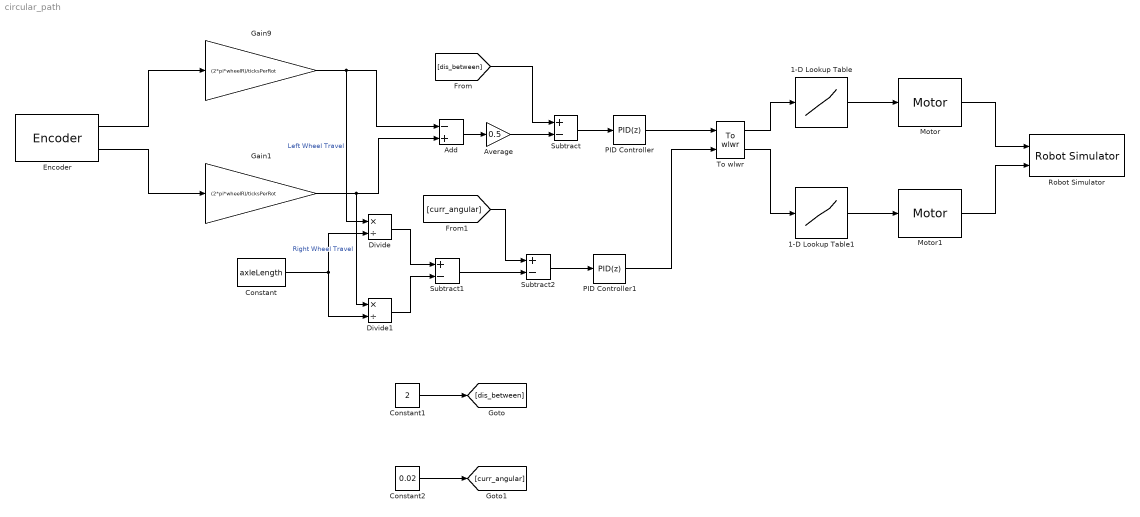
/*
 * circular_path.c
 *
 * Academic License - for use in teaching, academic research, and meeting
 * course requirements at degree granting institutions only.  Not for
 * government, commercial, or other organizational use.
 *
 * Code generation for model "circular_path".
 *
 * Model version              : 1.2
 * Simulink Coder version : 9.6 (R2021b) 14-May-2021
 * C source code generated on : Fri Dec  3 10:37:35 2021
 *
 * Target selection: grt.tlc
 * Note: GRT includes extra infrastructure and instrumentation for prototyping
 * Embedded hardware selection: Intel->x86-64 (Windows64)
 * Code generation objectives: Unspecified
 * Validation result: Not run
 */

#include "circular_path.h"
#include "circular_path_private.h"

/* Block states (default storage) */
DW_circular_path_T circular_path_DW;

/* Real-time model */
static RT_MODEL_circular_path_T circular_path_M_;
RT_MODEL_circular_path_T *const circular_path_M = &circular_path_M_;
real_T look1_binlcpw(real_T u0, const real_T bp0[], const real_T table[],
                     uint32_T maxIndex)
{
  real_T frac;
  real_T yL_0d0;
  uint32_T iLeft;

  /* Column-major Lookup 1-D
     Search method: 'binary'
     Use previous index: 'off'
     Interpolation method: 'Linear point-slope'
     Extrapolation method: 'Clip'
     Use last breakpoint for index at or above upper limit: 'off'
     Remove protection against out-of-range input in generated code: 'off'
   */
  /* Prelookup - Index and Fraction
     Index Search method: 'binary'
     Extrapolation method: 'Clip'
     Use previous index: 'off'
     Use last breakpoint for index at or above upper limit: 'off'
     Remove protection against out-of-range input in generated code: 'off'
   */
  if (u0 <= bp0[0U]) {
    iLeft = 0U;
    frac = 0.0;
  } else if (u0 < bp0[maxIndex]) {
    uint32_T bpIdx;
    uint32_T iRght;

    /* Binary Search */
    bpIdx = maxIndex >> 1U;
    iLeft = 0U;
    iRght = maxIndex;
    while (iRght - iLeft > 1U) {
      if (u0 < bp0[bpIdx]) {
        iRght = bpIdx;
      } else {
        iLeft = bpIdx;
      }

      bpIdx = (iRght + iLeft) >> 1U;
    }

    frac = (u0 - bp0[iLeft]) / (bp0[iLeft + 1U] - bp0[iLeft]);
  } else {
    iLeft = maxIndex - 1U;
    frac = 1.0;
  }

  /* Column-major Interpolation 1-D
     Interpolation method: 'Linear point-slope'
     Use last breakpoint for index at or above upper limit: 'off'
     Overflow mode: 'portable wrapping'
   */
  yL_0d0 = table[iLeft];
  return (table[iLeft + 1U] - yL_0d0) * frac + yL_0d0;
}

/* Model step function */
void circular_path_step(void)
{
  /* local block i/o variables */
  real_T rtb_Internal;
  real_T rtb_Internal_g;
  real_T rtb_Product1;
  real_T rtb_Product2;
  real_T rtb_Product3;
  real_T rtb_FilterCoefficient;
  real_T rtb_Tsamp;
  real_T rtb_uDLookupTable;
  real_T rtb_uDLookupTable1;
  real_T rtb_Gain2;
  real_T rtb_Gain3;
  real_T rtb_Switch;
  real_T rtb_IntegralGain;
  real_T rtb_DiscreteTimeIntegrator_a;
  real_T rtb_IntegralGain_g;
  real_T rtb_Subtract2;
  real_T rtb_Sum;
  real_T rtb_Switch_a4;
  real_T rtb_Switch_p;
  real_T tmp;
  real_T tmp_0;

  /* DiscreteStateSpace: '<S8>/Internal' */
  {
    rtb_Internal = (circular_path_P.Internal_C[0])*
      circular_path_DW.Internal_DSTATE[0]
      + (circular_path_P.Internal_C[1])*circular_path_DW.Internal_DSTATE[1]
      + (circular_path_P.Internal_C[2])*circular_path_DW.Internal_DSTATE[2];
  }

  /* Switch: '<S2>/Switch' incorporates:
   *  Constant: '<S2>/Constant'
   *  DiscreteIntegrator: '<S2>/Discrete-Time Integrator'
   *  Gain: '<S9>/Gain'
   */
  if (circular_path_P.Motor_sensorType > circular_path_P.Switch_Threshold) {
    rtb_Switch_a4 = circular_path_P.Gain_Gain *
      circular_path_DW.DiscreteTimeIntegrator_DSTATE_p;
  } else {
    rtb_Switch_a4 = rtb_Internal;
  }

  /* End of Switch: '<S2>/Switch' */

  /* DiscreteStateSpace: '<S12>/Internal' */
  {
    rtb_Internal_g = (circular_path_P.Internal_C_f[0])*
      circular_path_DW.Internal_DSTATE_l[0]
      + (circular_path_P.Internal_C_f[1])*circular_path_DW.Internal_DSTATE_l[1]
      + (circular_path_P.Internal_C_f[2])*circular_path_DW.Internal_DSTATE_l[2];
  }

  /* Switch: '<S3>/Switch' incorporates:
   *  Constant: '<S3>/Constant'
   *  DiscreteIntegrator: '<S3>/Discrete-Time Integrator'
   *  Gain: '<S13>/Gain'
   */
  if (circular_path_P.Motor1_sensorType > circular_path_P.Switch_Threshold_k) {
    rtb_Switch_p = circular_path_P.Gain_Gain_p *
      circular_path_DW.DiscreteTimeIntegrator_DSTATE_n;
  } else {
    rtb_Switch_p = rtb_Internal_g;
  }

  /* End of Switch: '<S3>/Switch' */

  /* Product: '<S6>/Product' incorporates:
   *  Constant: '<S6>/Wheel Radius'
   *  Gain: '<S6>/Gain1'
   *  Sum: '<S6>/Common Mode'
   */
  rtb_DiscreteTimeIntegrator_a = (rtb_Switch_a4 + rtb_Switch_p) *
    (circular_path_P.Gain1_Gain * circular_path_P.RobotSimulator_wheelR);

  /* Product: '<S6>/Product1' incorporates:
   *  Constant: '<S6>/Wheel Radius'
   *  Constant: '<S6>/Wheel Spacing'
   *  Product: '<S6>/Divide'
   *  Sum: '<S6>/Differential'
   */
  rtb_Product1 = circular_path_P.RobotSimulator_wheelR /
    circular_path_P.RobotSimulator_axleLength * (rtb_Switch_p - rtb_Switch_a4);

  /* Product: '<S6>/Product2' incorporates:
   *  DiscreteIntegrator: '<S6>/Discrete-Time Integrator2'
   *  Trigonometry: '<S6>/Comp_x'
   */
  rtb_Product2 = rtb_DiscreteTimeIntegrator_a * cos
    (circular_path_DW.DiscreteTimeIntegrator2_DSTATE);

  /* Product: '<S6>/Product3' incorporates:
   *  DiscreteIntegrator: '<S6>/Discrete-Time Integrator2'
   *  Trigonometry: '<S6>/Comp_y'
   */
  rtb_Product3 = rtb_DiscreteTimeIntegrator_a * sin
    (circular_path_DW.DiscreteTimeIntegrator2_DSTATE);

  /* S-Function (sfun_time): '<S6>/Soft Real Time' */

  /* Level2 S-Function Block: '<S6>/Soft Real Time' (sfun_time) */
  {
    SimStruct *rts = circular_path_M->childSfunctions[0];
    sfcnOutputs(rts,0);
  }

  /* Gain: '<Root>/Gain9' incorporates:
   *  DiscreteIntegrator: '<S1>/Discrete-Time Integrator'
   *  Gain: '<Root>/Gain1'
   *  Gain: '<S1>/Gain5'
   *  Rounding: '<S1>/Rounding Function'
   */
  rtb_IntegralGain_g = 6.2831853071795862 * circular_path_P.wheelR /
    circular_path_P.ticksPerRot;
  rtb_DiscreteTimeIntegrator_a = ceil(circular_path_P.ticksPerRot / 360.0 *
    circular_path_DW.DiscreteTimeIntegrator_DSTATE_k) * rtb_IntegralGain_g;

  /* Gain: '<Root>/Gain1' incorporates:
   *  DiscreteIntegrator: '<S1>/Discrete-Time Integrator1'
   *  Gain: '<S1>/Gain6'
   *  Rounding: '<S1>/Rounding Function1'
   */
  rtb_IntegralGain_g *= ceil(circular_path_P.ticksPerRot / 360.0 *
    circular_path_DW.DiscreteTimeIntegrator1_DSTAT_n);

  /* Sum: '<Root>/Subtract2' incorporates:
   *  Constant: '<Root>/Constant'
   *  Constant: '<Root>/Constant2'
   *  Product: '<Root>/Divide'
   *  Product: '<Root>/Divide1'
   *  Sum: '<Root>/Subtract1'
   */
  rtb_Subtract2 = circular_path_P.Constant2_Value -
    (rtb_DiscreteTimeIntegrator_a / circular_path_P.axleLength -
     rtb_IntegralGain_g / circular_path_P.axleLength);

  /* Gain: '<S102>/Filter Coefficient' incorporates:
   *  DiscreteIntegrator: '<S94>/Filter'
   *  Gain: '<S93>/Derivative Gain'
   *  Sum: '<S94>/SumD'
   */
  rtb_FilterCoefficient = (circular_path_P.PIDController1_D * rtb_Subtract2 -
    circular_path_DW.Filter_DSTATE) * circular_path_P.PIDController1_N;

  /* Sum: '<S108>/Sum' incorporates:
   *  DiscreteIntegrator: '<S99>/Integrator'
   *  Gain: '<S104>/Proportional Gain'
   */
  rtb_Sum = (circular_path_P.PIDController1_P * rtb_Subtract2 +
             circular_path_DW.Integrator_DSTATE) + rtb_FilterCoefficient;

  /* Sum: '<Root>/Subtract' incorporates:
   *  Constant: '<Root>/Constant1'
   *  Gain: '<Root>/Average'
   *  Sum: '<Root>/Add'
   */
  rtb_IntegralGain_g = circular_path_P.Constant1_Value_g - (rtb_IntegralGain_g -
    rtb_DiscreteTimeIntegrator_a) * circular_path_P.Average_Gain;

  /* SampleTimeMath: '<S46>/Tsamp' incorporates:
   *  Gain: '<S43>/Derivative Gain'
   *
   * About '<S46>/Tsamp':
   *  y = u * K where K = 1 / ( w * Ts )
   */
  rtb_Tsamp = circular_path_P.PIDController_D * rtb_IntegralGain_g *
    circular_path_P.Tsamp_WtEt;

  /* Sum: '<S60>/Sum' incorporates:
   *  Delay: '<S44>/UD'
   *  DiscreteIntegrator: '<S51>/Integrator'
   *  Gain: '<S56>/Proportional Gain'
   *  Sum: '<S44>/Diff'
   */
  rtb_DiscreteTimeIntegrator_a = (circular_path_P.PIDController_P *
    rtb_IntegralGain_g + circular_path_DW.Integrator_DSTATE_p) + (rtb_Tsamp -
    circular_path_DW.UD_DSTATE);

  /* Gain: '<S7>/vtow' */
  tmp = 1.0 / circular_path_P.wheelR;

  /* Saturate: '<S58>/Saturation' */
  if (rtb_DiscreteTimeIntegrator_a >
      circular_path_P.PIDController_UpperSaturationLi) {
    tmp_0 = circular_path_P.PIDController_UpperSaturationLi;
  } else if (rtb_DiscreteTimeIntegrator_a <
             circular_path_P.PIDController_LowerSaturationLi) {
    tmp_0 = circular_path_P.PIDController_LowerSaturationLi;
  } else {
    tmp_0 = rtb_DiscreteTimeIntegrator_a;
  }

  /* Lookup_n-D: '<Root>/1-D Lookup Table' incorporates:
   *  Gain: '<S7>/change parameters'
   *  Gain: '<S7>/vtow'
   *  Saturate: '<S58>/Saturation'
   *  SignalConversion generated from: '<S7>/change parameters'
   */
  rtb_uDLookupTable = look1_binlcpw((circular_path_P.changeparameters_Gain[0] *
    tmp_0 + circular_path_P.changeparameters_Gain[2] * rtb_Sum) * tmp,
    circular_path_P.motorSp, circular_path_P.motorIp, 254U);

  /* Lookup_n-D: '<Root>/1-D Lookup Table1' incorporates:
   *  Gain: '<S7>/change parameters'
   *  Gain: '<S7>/vtow'
   *  Saturate: '<S58>/Saturation'
   *  SignalConversion generated from: '<S7>/change parameters'
   */
  rtb_uDLookupTable1 = look1_binlcpw((circular_path_P.changeparameters_Gain[1] *
    tmp_0 + circular_path_P.changeparameters_Gain[3] * rtb_Sum) * tmp,
    circular_path_P.motorSp, circular_path_P.motorIp, 254U);

  /* Gain: '<S1>/Gain2' */
  rtb_Gain2 = circular_path_P.Gain2_Gain * rtb_Switch_a4;

  /* Gain: '<S1>/Gain3' */
  rtb_Gain3 = circular_path_P.Gain3_Gain * rtb_Switch_p;

  /* Gain: '<S40>/ZeroGain' */
  rtb_Switch_a4 = circular_path_P.ZeroGain_Gain * rtb_DiscreteTimeIntegrator_a;

  /* DeadZone: '<S42>/DeadZone' */
  if (rtb_DiscreteTimeIntegrator_a >
      circular_path_P.PIDController_UpperSaturationLi) {
    rtb_DiscreteTimeIntegrator_a -=
      circular_path_P.PIDController_UpperSaturationLi;
  } else if (rtb_DiscreteTimeIntegrator_a >=
             circular_path_P.PIDController_LowerSaturationLi) {
    rtb_DiscreteTimeIntegrator_a = 0.0;
  } else {
    rtb_DiscreteTimeIntegrator_a -=
      circular_path_P.PIDController_LowerSaturationLi;
  }

  /* End of DeadZone: '<S42>/DeadZone' */

  /* Gain: '<S48>/Integral Gain' */
  rtb_IntegralGain_g *= circular_path_P.PIDController_I;

  /* Signum: '<S40>/SignPreSat' */
  if (rtb_DiscreteTimeIntegrator_a < 0.0) {
    /* DataTypeConversion: '<S40>/DataTypeConv1' */
    tmp = -1.0;
  } else if (rtb_DiscreteTimeIntegrator_a > 0.0) {
    /* DataTypeConversion: '<S40>/DataTypeConv1' */
    tmp = 1.0;
  } else if (rtb_DiscreteTimeIntegrator_a == 0.0) {
    /* DataTypeConversion: '<S40>/DataTypeConv1' */
    tmp = 0.0;
  } else {
    /* DataTypeConversion: '<S40>/DataTypeConv1' */
    tmp = (rtNaN);
  }

  /* End of Signum: '<S40>/SignPreSat' */

  /* DataTypeConversion: '<S40>/DataTypeConv1' */
  if (rtIsNaN(tmp)) {
    tmp = 0.0;
  } else {
    tmp = fmod(tmp, 256.0);
  }

  /* Signum: '<S40>/SignPreIntegrator' */
  if (rtb_IntegralGain_g < 0.0) {
    /* DataTypeConversion: '<S40>/DataTypeConv2' */
    rtb_Switch_p = -1.0;
  } else if (rtb_IntegralGain_g > 0.0) {
    /* DataTypeConversion: '<S40>/DataTypeConv2' */
    rtb_Switch_p = 1.0;
  } else if (rtb_IntegralGain_g == 0.0) {
    /* DataTypeConversion: '<S40>/DataTypeConv2' */
    rtb_Switch_p = 0.0;
  } else {
    /* DataTypeConversion: '<S40>/DataTypeConv2' */
    rtb_Switch_p = (rtNaN);
  }

  /* End of Signum: '<S40>/SignPreIntegrator' */

  /* DataTypeConversion: '<S40>/DataTypeConv2' */
  if (rtIsNaN(rtb_Switch_p)) {
    rtb_Switch_p = 0.0;
  } else {
    rtb_Switch_p = fmod(rtb_Switch_p, 256.0);
  }

  /* Switch: '<S40>/Switch' incorporates:
   *  DataTypeConversion: '<S40>/DataTypeConv1'
   *  DataTypeConversion: '<S40>/DataTypeConv2'
   *  Logic: '<S40>/AND3'
   *  RelationalOperator: '<S40>/Equal1'
   *  RelationalOperator: '<S40>/NotEqual'
   */
  if ((rtb_Switch_a4 != rtb_DiscreteTimeIntegrator_a) && ((tmp < 0.0 ? (int32_T)
        (int8_T)-(int8_T)(uint8_T)-tmp : (int32_T)(int8_T)(uint8_T)tmp) ==
       (rtb_Switch_p < 0.0 ? (int32_T)(int8_T)-(int8_T)(uint8_T)-rtb_Switch_p :
        (int32_T)(int8_T)(uint8_T)rtb_Switch_p))) {
    /* Switch: '<S40>/Switch' incorporates:
     *  Constant: '<S40>/Constant1'
     */
    rtb_Switch = circular_path_P.Constant1_Value;
  } else {
    /* Switch: '<S40>/Switch' */
    rtb_Switch = rtb_IntegralGain_g;
  }

  /* End of Switch: '<S40>/Switch' */

  /* Gain: '<S96>/Integral Gain' */
  rtb_IntegralGain = circular_path_P.PIDController1_I * rtb_Subtract2;

  /* Matfile logging */
  rt_UpdateTXYLogVars(circular_path_M->rtwLogInfo, (circular_path_M->Timing.t));

  /* Update for DiscreteIntegrator: '<S6>/Discrete-Time Integrator' */
  circular_path_DW.DiscreteTimeIntegrator_DSTATE +=
    circular_path_P.DiscreteTimeIntegrator_gainval * rtb_Product2;

  /* Update for DiscreteIntegrator: '<S6>/Discrete-Time Integrator1' */
  circular_path_DW.DiscreteTimeIntegrator1_DSTATE +=
    circular_path_P.DiscreteTimeIntegrator1_gainval * rtb_Product3;

  /* Update for DiscreteIntegrator: '<S6>/Discrete-Time Integrator2' */
  circular_path_DW.DiscreteTimeIntegrator2_DSTATE +=
    circular_path_P.DiscreteTimeIntegrator2_gainval * rtb_Product1;

  /* Update for DiscreteIntegrator: '<S2>/Discrete-Time Integrator' */
  circular_path_DW.DiscreteTimeIntegrator_DSTATE_p +=
    circular_path_P.DiscreteTimeIntegrator_gainva_d * rtb_Internal;

  /* Update for DiscreteStateSpace: '<S8>/Internal' */
  {
    real_T xnew[3];
    xnew[0] = (circular_path_P.Internal_A[0])*circular_path_DW.Internal_DSTATE[0]
      + (circular_path_P.Internal_A[1])*circular_path_DW.Internal_DSTATE[1]
      + (circular_path_P.Internal_A[2])*circular_path_DW.Internal_DSTATE[2];
    xnew[0] += (circular_path_P.Internal_B[0])*rtb_uDLookupTable;
    xnew[1] = (circular_path_P.Internal_A[3])*circular_path_DW.Internal_DSTATE[0]
      + (circular_path_P.Internal_A[4])*circular_path_DW.Internal_DSTATE[1]
      + (circular_path_P.Internal_A[5])*circular_path_DW.Internal_DSTATE[2];
    xnew[1] += (circular_path_P.Internal_B[1])*rtb_uDLookupTable;
    xnew[2] = (circular_path_P.Internal_A[6])*circular_path_DW.Internal_DSTATE[0]
      + (circular_path_P.Internal_A[7])*circular_path_DW.Internal_DSTATE[1]
      + (circular_path_P.Internal_A[8])*circular_path_DW.Internal_DSTATE[2];
    xnew[2] += (circular_path_P.Internal_B[2])*rtb_uDLookupTable;
    (void) memcpy(&circular_path_DW.Internal_DSTATE[0], xnew,
                  sizeof(real_T)*3);
  }

  /* Update for DiscreteIntegrator: '<S3>/Discrete-Time Integrator' */
  circular_path_DW.DiscreteTimeIntegrator_DSTATE_n +=
    circular_path_P.DiscreteTimeIntegrator_gainva_o * rtb_Internal_g;

  /* Update for DiscreteStateSpace: '<S12>/Internal' */
  {
    real_T xnew[3];
    xnew[0] = (circular_path_P.Internal_A_n[0])*
      circular_path_DW.Internal_DSTATE_l[0]
      + (circular_path_P.Internal_A_n[1])*circular_path_DW.Internal_DSTATE_l[1]
      + (circular_path_P.Internal_A_n[2])*circular_path_DW.Internal_DSTATE_l[2];
    xnew[0] += (circular_path_P.Internal_B_b[0])*rtb_uDLookupTable1;
    xnew[1] = (circular_path_P.Internal_A_n[3])*
      circular_path_DW.Internal_DSTATE_l[0]
      + (circular_path_P.Internal_A_n[4])*circular_path_DW.Internal_DSTATE_l[1]
      + (circular_path_P.Internal_A_n[5])*circular_path_DW.Internal_DSTATE_l[2];
    xnew[1] += (circular_path_P.Internal_B_b[1])*rtb_uDLookupTable1;
    xnew[2] = (circular_path_P.Internal_A_n[6])*
      circular_path_DW.Internal_DSTATE_l[0]
      + (circular_path_P.Internal_A_n[7])*circular_path_DW.Internal_DSTATE_l[1]
      + (circular_path_P.Internal_A_n[8])*circular_path_DW.Internal_DSTATE_l[2];
    xnew[2] += (circular_path_P.Internal_B_b[2])*rtb_uDLookupTable1;
    (void) memcpy(&circular_path_DW.Internal_DSTATE_l[0], xnew,
                  sizeof(real_T)*3);
  }

  /* Update for DiscreteIntegrator: '<S1>/Discrete-Time Integrator' */
  circular_path_DW.DiscreteTimeIntegrator_DSTATE_k +=
    circular_path_P.DiscreteTimeIntegrator_gainva_l * rtb_Gain2;

  /* Update for DiscreteIntegrator: '<S1>/Discrete-Time Integrator1' */
  circular_path_DW.DiscreteTimeIntegrator1_DSTAT_n +=
    circular_path_P.DiscreteTimeIntegrator1_gainv_b * rtb_Gain3;

  /* Update for DiscreteIntegrator: '<S99>/Integrator' */
  circular_path_DW.Integrator_DSTATE += circular_path_P.Integrator_gainval *
    rtb_IntegralGain;

  /* Update for DiscreteIntegrator: '<S94>/Filter' */
  circular_path_DW.Filter_DSTATE += circular_path_P.Filter_gainval *
    rtb_FilterCoefficient;

  /* Update for DiscreteIntegrator: '<S51>/Integrator' */
  circular_path_DW.Integrator_DSTATE_p += circular_path_P.Integrator_gainval_c *
    rtb_Switch;

  /* Update for Delay: '<S44>/UD' */
  circular_path_DW.UD_DSTATE = rtb_Tsamp;

  /* signal main to stop simulation */
  {                                    /* Sample time: [0.0s, 0.0s] */
    if ((rtmGetTFinal(circular_path_M)!=-1) &&
        !((rtmGetTFinal(circular_path_M)-circular_path_M->Timing.t[0]) >
          circular_path_M->Timing.t[0] * (DBL_EPSILON))) {
      rtmSetErrorStatus(circular_path_M, "Simulation finished");
    }

    if (rtmGetStopRequested(circular_path_M)) {
      rtmSetErrorStatus(circular_path_M, "Simulation finished");
    }
  }

  /* Update absolute time for base rate */
  /* The "clockTick0" counts the number of times the code of this task has
   * been executed. The absolute time is the multiplication of "clockTick0"
   * and "Timing.stepSize0". Size of "clockTick0" ensures timer will not
   * overflow during the application lifespan selected.
   * Timer of this task consists of two 32 bit unsigned integers.
   * The two integers represent the low bits Timing.clockTick0 and the high bits
   * Timing.clockTickH0. When the low bit overflows to 0, the high bits increment.
   */
  if (!(++circular_path_M->Timing.clockTick0)) {
    ++circular_path_M->Timing.clockTickH0;
  }

  circular_path_M->Timing.t[0] = circular_path_M->Timing.clockTick0 *
    circular_path_M->Timing.stepSize0 + circular_path_M->Timing.clockTickH0 *
    circular_path_M->Timing.stepSize0 * 4294967296.0;

  {
    /* Update absolute timer for sample time: [0.01s, 0.0s] */
    /* The "clockTick1" counts the number of times the code of this task has
     * been executed. The resolution of this integer timer is 0.01, which is the step size
     * of the task. Size of "clockTick1" ensures timer will not overflow during the
     * application lifespan selected.
     * Timer of this task consists of two 32 bit unsigned integers.
     * The two integers represent the low bits Timing.clockTick1 and the high bits
     * Timing.clockTickH1. When the low bit overflows to 0, the high bits increment.
     */
    circular_path_M->Timing.clockTick1++;
    if (!circular_path_M->Timing.clockTick1) {
      circular_path_M->Timing.clockTickH1++;
    }
  }
}
